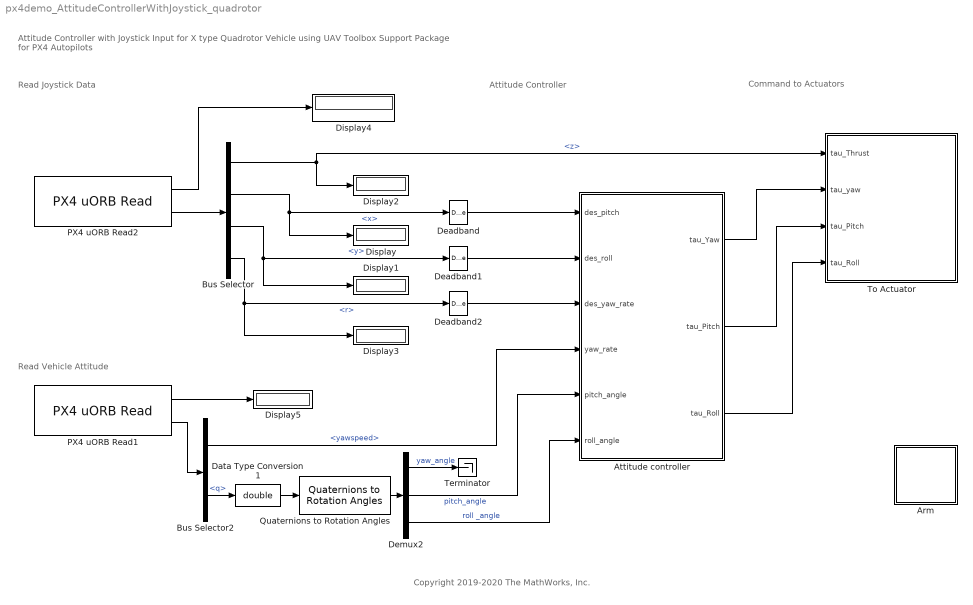
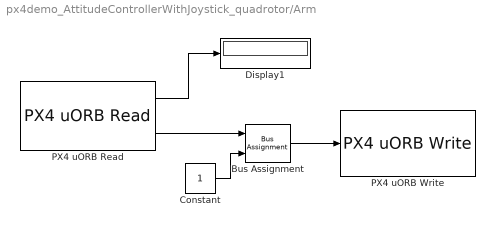
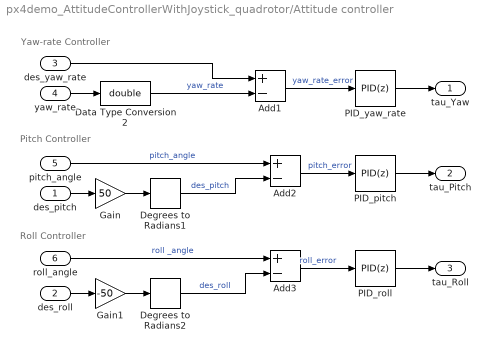
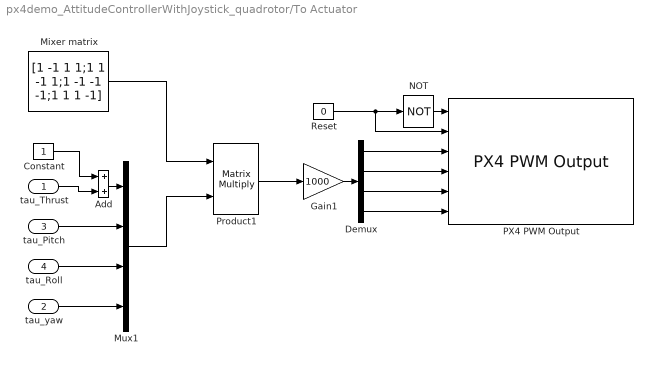
//
// Academic License - for use in teaching, academic research, and meeting
// course requirements at degree granting institutions only.  Not for
// government, commercial, or other organizational use.
//
// File: px4demo_AttitudeControllerWithJoystick_quadrotor.cpp
//
// Code generated for Simulink model 'px4demo_AttitudeControllerWithJoystick_quadrotor'.
//
// Model version                  : 2.0
// Simulink Coder version         : 9.5 (R2021a) 14-Nov-2020
// C/C++ source code generated on : Mon Mar 21 10:32:49 2022
//
// Target selection: ert.tlc
// Embedded hardware selection: ARM Compatible->ARM Cortex
// Code generation objectives: Unspecified
// Validation result: Not run
//
#include "px4demo_AttitudeControllerWithJoystick_quadrotor.h"
#include "px4demo_AttitudeControllerWithJoystick_quadrotor_private.h"

// Block signals (default storage)
B_px4demo_AttitudeControllerW_T px4demo_AttitudeControllerWit_B;

// Block states (default storage)
DW_px4demo_AttitudeController_T px4demo_AttitudeControllerWi_DW;

// Real-time model
RT_MODEL_px4demo_AttitudeCont_T px4demo_AttitudeControllerWi_M_ =
  RT_MODEL_px4demo_AttitudeCont_T();
RT_MODEL_px4demo_AttitudeCont_T *const px4demo_AttitudeControllerWi_M =
  &px4demo_AttitudeControllerWi_M_;

// Forward declaration for local functions
static void px4demo_Attitu_SystemCore_setup(px4_internal_block_PWM_px4dem_T *obj,
  boolean_T varargin_1, boolean_T varargin_2);
real_T rt_atan2d_snf(real_T u0, real_T u1)
{
  real_T y;
  int32_T u0_0;
  int32_T u1_0;
  if (rtIsNaN(u0) || rtIsNaN(u1)) {
    y = (rtNaN);
  } else if (rtIsInf(u0) && rtIsInf(u1)) {
    if (u0 > 0.0) {
      u0_0 = 1;
    } else {
      u0_0 = -1;
    }

    if (u1 > 0.0) {
      u1_0 = 1;
    } else {
      u1_0 = -1;
    }

    y = atan2(static_cast<real_T>(u0_0), static_cast<real_T>(u1_0));
  } else if (u1 == 0.0) {
    if (u0 > 0.0) {
      y = RT_PI / 2.0;
    } else if (u0 < 0.0) {
      y = -(RT_PI / 2.0);
    } else {
      y = 0.0;
    }
  } else {
    y = atan2(u0, u1);
  }

  return y;
}

static void px4demo_Attitu_SystemCore_setup(px4_internal_block_PWM_px4dem_T *obj,
  boolean_T varargin_1, boolean_T varargin_2)
{
  uint16_T status;
  obj->isSetupComplete = false;
  obj->isInitialized = 1;
  obj->isMain = true;
  obj->pwmDevObj = MW_PWM_OUTPUT_MAIN_DEVICE_PATH;
  status = pwm_open(&obj->pwmDevHandler, obj->pwmDevObj,
                    &obj->actuatorAdvertiseObj, &obj->armAdvertiseObj);
  obj->errorStatus = static_cast<uint16_T>(obj->errorStatus | status);
  obj->servoCount = 0;
  status = pwm_getServoCount(&obj->pwmDevHandler, &obj->servoCount);
  obj->errorStatus = static_cast<uint16_T>(obj->errorStatus | status);
  if (varargin_1) {
    status = pwm_arm(&obj->pwmDevHandler, &obj->armAdvertiseObj);
    obj->isArmed = true;
  } else {
    status = pwm_disarm(&obj->pwmDevHandler, &obj->armAdvertiseObj);
    obj->isArmed = false;
  }

  obj->errorStatus = static_cast<uint16_T>(obj->errorStatus | status);
  status = pwm_setPWMRate(&obj->pwmDevHandler, obj->isMain);
  obj->errorStatus = static_cast<uint16_T>(obj->errorStatus | status);
  obj->channelMask = 15;
  status = pwm_setChannelMask(&obj->pwmDevHandler, obj->channelMask);
  obj->errorStatus = static_cast<uint16_T>(obj->errorStatus | status);
  status = pwm_setFailsafePWM(&obj->pwmDevHandler, obj->servoCount,
    obj->channelMask, obj->isMain);
  obj->errorStatus = static_cast<uint16_T>(obj->errorStatus | status);
  status = pwm_setDisarmedPWM(&obj->pwmDevHandler, obj->servoCount,
    obj->channelMask, obj->isMain, &obj->actuatorAdvertiseObj);
  obj->errorStatus = static_cast<uint16_T>(obj->errorStatus | status);
  if (obj->isMain) {
    status = pwm_forceFailsafe(&obj->pwmDevHandler, static_cast<int32_T>
      (varargin_2));
    obj->errorStatus = static_cast<uint16_T>(obj->errorStatus | status);
    status = pwm_forceTerminateFailsafe(&obj->pwmDevHandler, 0);
    obj->errorStatus = static_cast<uint16_T>(obj->errorStatus | status);
  }

  obj->isSetupComplete = true;
}

// Model step function
void px4demo_AttitudeControllerWithJoystick_quadrotor_step(void)
{
  real_T rtb_Filter_d;
  real_T rtb_fcn3;
  real_T tmp;
  real_T tmp_0;
  int32_T i;
  real32_T tmp_1;
  uint16_T rtb_Gain1_n[4];
  uint16_T status;
  boolean_T b_varargout_1;

  // MATLABSystem: '<S4>/SourceBlock' incorporates:
  //   Inport: '<S160>/In1'

  b_varargout_1 = uORB_read_step
    (px4demo_AttitudeControllerWi_DW.obj.orbMetadataObj,
     &px4demo_AttitudeControllerWi_DW.obj.eventStructObj,
     &px4demo_AttitudeControllerWit_B.b_varargout_2_m, false, 1.0);

  // Outputs for Enabled SubSystem: '<S4>/Enabled Subsystem' incorporates:
  //   EnablePort: '<S160>/Enable'

  if (b_varargout_1) {
    px4demo_AttitudeControllerWit_B.In1_p =
      px4demo_AttitudeControllerWit_B.b_varargout_2_m;
  }

  // End of MATLABSystem: '<S4>/SourceBlock'
  // End of Outputs for SubSystem: '<S4>/Enabled Subsystem'

  // MATLABSystem: '<S3>/SourceBlock' incorporates:
  //   Inport: '<S159>/In1'

  b_varargout_1 = uORB_read_step
    (px4demo_AttitudeControllerWi_DW.obj_d.orbMetadataObj,
     &px4demo_AttitudeControllerWi_DW.obj_d.eventStructObj,
     &px4demo_AttitudeControllerWit_B.b_varargout_2, false, 1.0);

  // Outputs for Enabled SubSystem: '<S3>/Enabled Subsystem' incorporates:
  //   EnablePort: '<S159>/Enable'

  if (b_varargout_1) {
    px4demo_AttitudeControllerWit_B.In1 =
      px4demo_AttitudeControllerWit_B.b_varargout_2;
  }

  // End of MATLABSystem: '<S3>/SourceBlock'
  // End of Outputs for SubSystem: '<S3>/Enabled Subsystem'

  // Sqrt: '<S167>/sqrt' incorporates:
  //   DataTypeConversion: '<Root>/Data Type Conversion1'
  //   Product: '<S168>/Product'
  //   Product: '<S168>/Product1'
  //   Product: '<S168>/Product2'
  //   Product: '<S168>/Product3'
  //   Sum: '<S168>/Sum'

  px4demo_AttitudeControllerWit_B.Saturation_l = sqrt(((static_cast<real_T>
    (px4demo_AttitudeControllerWit_B.In1.q[0]) *
    px4demo_AttitudeControllerWit_B.In1.q[0] + static_cast<real_T>
    (px4demo_AttitudeControllerWit_B.In1.q[1]) *
    px4demo_AttitudeControllerWit_B.In1.q[1]) + static_cast<real_T>
    (px4demo_AttitudeControllerWit_B.In1.q[2]) *
    px4demo_AttitudeControllerWit_B.In1.q[2]) + static_cast<real_T>
    (px4demo_AttitudeControllerWit_B.In1.q[3]) *
    px4demo_AttitudeControllerWit_B.In1.q[3]);

  // Product: '<S162>/Product' incorporates:
  //   DataTypeConversion: '<Root>/Data Type Conversion1'

  px4demo_AttitudeControllerWit_B.Filter_o =
    px4demo_AttitudeControllerWit_B.In1.q[0] /
    px4demo_AttitudeControllerWit_B.Saturation_l;

  // Product: '<S162>/Product1' incorporates:
  //   DataTypeConversion: '<Root>/Data Type Conversion1'

  px4demo_AttitudeControllerWit_B.Saturation_f =
    px4demo_AttitudeControllerWit_B.In1.q[1] /
    px4demo_AttitudeControllerWit_B.Saturation_l;

  // Product: '<S162>/Product2' incorporates:
  //   DataTypeConversion: '<Root>/Data Type Conversion1'

  px4demo_AttitudeControllerWit_B.Filter =
    px4demo_AttitudeControllerWit_B.In1.q[2] /
    px4demo_AttitudeControllerWit_B.Saturation_l;

  // Product: '<S162>/Product3' incorporates:
  //   DataTypeConversion: '<Root>/Data Type Conversion1'

  px4demo_AttitudeControllerWit_B.Saturation_l =
    px4demo_AttitudeControllerWit_B.In1.q[3] /
    px4demo_AttitudeControllerWit_B.Saturation_l;

  // Fcn: '<S5>/fcn3'
  rtb_fcn3 = (px4demo_AttitudeControllerWit_B.Saturation_f *
              px4demo_AttitudeControllerWit_B.Saturation_l -
              px4demo_AttitudeControllerWit_B.Filter_o *
              px4demo_AttitudeControllerWit_B.Filter) * -2.0;

  // If: '<S163>/If' incorporates:
  //   Constant: '<S164>/Constant'
  //   Constant: '<S165>/Constant'

  if (rtb_fcn3 > 1.0) {
    rtb_fcn3 = px4demo_AttitudeControllerWit_P.Constant_Value_lz;
  } else if (rtb_fcn3 < -1.0) {
    rtb_fcn3 = px4demo_AttitudeControllerWit_P.Constant_Value_i;
  }

  // End of If: '<S163>/If'

  // Trigonometry: '<S161>/trigFcn'
  if (rtb_fcn3 > 1.0) {
    rtb_fcn3 = 1.0;
  } else if (rtb_fcn3 < -1.0) {
    rtb_fcn3 = -1.0;
  }

  // DeadZone: '<Root>/Deadband' incorporates:
  //   SignalConversion generated from: '<Root>/Bus Selector'

  if (px4demo_AttitudeControllerWit_B.In1_p.x >
      px4demo_AttitudeControllerWit_P.Deadband_End) {
    tmp_1 = px4demo_AttitudeControllerWit_B.In1_p.x -
      px4demo_AttitudeControllerWit_P.Deadband_End;
  } else if (px4demo_AttitudeControllerWit_B.In1_p.x >=
             px4demo_AttitudeControllerWit_P.Deadband_Start) {
    tmp_1 = 0.0F;
  } else {
    tmp_1 = px4demo_AttitudeControllerWit_B.In1_p.x -
      px4demo_AttitudeControllerWit_P.Deadband_Start;
  }

  // End of DeadZone: '<Root>/Deadband'

  // Sum: '<S2>/Add2' incorporates:
  //   Gain: '<S10>/Gain1'
  //   Gain: '<S2>/Gain'
  //   Trigonometry: '<S161>/trigFcn'

  rtb_Filter_d = asin(rtb_fcn3) - px4demo_AttitudeControllerWit_P.Gain_Gain *
    tmp_1 * px4demo_AttitudeControllerWit_P.Gain1_Gain_n;

  // DiscreteIntegrator: '<S46>/Integrator' incorporates:
  //   Gain: '<S43>/Integral Gain'

  px4demo_AttitudeControllerWi_DW.Integrator_DSTATE +=
    px4demo_AttitudeControllerWit_P.PID_pitch_I * rtb_Filter_d *
    px4demo_AttitudeControllerWit_P.Integrator_gainval;

  // Gain: '<S49>/Filter Coefficient' incorporates:
  //   DiscreteIntegrator: '<S41>/Filter'
  //   Gain: '<S40>/Derivative Gain'
  //   Sum: '<S41>/SumD'

  rtb_fcn3 = (px4demo_AttitudeControllerWit_P.PID_pitch_D * rtb_Filter_d -
              px4demo_AttitudeControllerWi_DW.Filter_DSTATE) *
    px4demo_AttitudeControllerWit_P.PID_pitch_N;

  // DeadZone: '<Root>/Deadband1' incorporates:
  //   SignalConversion generated from: '<Root>/Bus Selector'

  if (px4demo_AttitudeControllerWit_B.In1_p.y >
      px4demo_AttitudeControllerWit_P.Deadband1_End) {
    tmp_1 = px4demo_AttitudeControllerWit_B.In1_p.y -
      px4demo_AttitudeControllerWit_P.Deadband1_End;
  } else if (px4demo_AttitudeControllerWit_B.In1_p.y >=
             px4demo_AttitudeControllerWit_P.Deadband1_Start) {
    tmp_1 = 0.0F;
  } else {
    tmp_1 = px4demo_AttitudeControllerWit_B.In1_p.y -
      px4demo_AttitudeControllerWit_P.Deadband1_Start;
  }

  // End of DeadZone: '<Root>/Deadband1'

  // Sum: '<S2>/Add3' incorporates:
  //   Fcn: '<S5>/fcn4'
  //   Fcn: '<S5>/fcn5'
  //   Gain: '<S11>/Gain1'
  //   Gain: '<S2>/Gain1'
  //   Trigonometry: '<S161>/Trigonometric Function3'

  px4demo_AttitudeControllerWit_B.Filter_o = rt_atan2d_snf
    ((px4demo_AttitudeControllerWit_B.Filter *
      px4demo_AttitudeControllerWit_B.Saturation_l +
      px4demo_AttitudeControllerWit_B.Filter_o *
      px4demo_AttitudeControllerWit_B.Saturation_f) * 2.0,
     ((px4demo_AttitudeControllerWit_B.Filter_o *
       px4demo_AttitudeControllerWit_B.Filter_o -
       px4demo_AttitudeControllerWit_B.Saturation_f *
       px4demo_AttitudeControllerWit_B.Saturation_f) -
      px4demo_AttitudeControllerWit_B.Filter *
      px4demo_AttitudeControllerWit_B.Filter) +
     px4demo_AttitudeControllerWit_B.Saturation_l *
     px4demo_AttitudeControllerWit_B.Saturation_l) -
    px4demo_AttitudeControllerWit_P.Gain1_Gain_g * tmp_1 *
    px4demo_AttitudeControllerWit_P.Gain1_Gain_c;

  // DiscreteIntegrator: '<S94>/Integrator' incorporates:
  //   Gain: '<S91>/Integral Gain'

  px4demo_AttitudeControllerWi_DW.Integrator_DSTATE_m +=
    px4demo_AttitudeControllerWit_P.PID_roll_I *
    px4demo_AttitudeControllerWit_B.Filter_o *
    px4demo_AttitudeControllerWit_P.Integrator_gainval_e;

  // Gain: '<S97>/Filter Coefficient' incorporates:
  //   DiscreteIntegrator: '<S89>/Filter'
  //   Gain: '<S88>/Derivative Gain'
  //   Sum: '<S89>/SumD'

  px4demo_AttitudeControllerWit_B.Saturation_f =
    (px4demo_AttitudeControllerWit_P.PID_roll_D *
     px4demo_AttitudeControllerWit_B.Filter_o -
     px4demo_AttitudeControllerWi_DW.Filter_DSTATE_d) *
    px4demo_AttitudeControllerWit_P.PID_roll_N;

  // DeadZone: '<Root>/Deadband2' incorporates:
  //   SignalConversion generated from: '<Root>/Bus Selector'

  if (px4demo_AttitudeControllerWit_B.In1_p.r >
      px4demo_AttitudeControllerWit_P.Deadband2_End) {
    tmp_1 = px4demo_AttitudeControllerWit_B.In1_p.r -
      px4demo_AttitudeControllerWit_P.Deadband2_End;
  } else if (px4demo_AttitudeControllerWit_B.In1_p.r >=
             px4demo_AttitudeControllerWit_P.Deadband2_Start) {
    tmp_1 = 0.0F;
  } else {
    tmp_1 = px4demo_AttitudeControllerWit_B.In1_p.r -
      px4demo_AttitudeControllerWit_P.Deadband2_Start;
  }

  // End of DeadZone: '<Root>/Deadband2'

  // Sum: '<S2>/Add1' incorporates:
  //   DataTypeConversion: '<S2>/Data Type Conversion2'

  px4demo_AttitudeControllerWit_B.Saturation_l = static_cast<real_T>(tmp_1) -
    px4demo_AttitudeControllerWit_B.In1.yawspeed;

  // DiscreteIntegrator: '<S142>/Integrator' incorporates:
  //   Gain: '<S139>/Integral Gain'

  px4demo_AttitudeControllerWi_DW.Integrator_DSTATE_i +=
    px4demo_AttitudeControllerWit_P.PID_yaw_rate_I *
    px4demo_AttitudeControllerWit_B.Saturation_l *
    px4demo_AttitudeControllerWit_P.Integrator_gainval_b;

  // Gain: '<S145>/Filter Coefficient' incorporates:
  //   DiscreteIntegrator: '<S137>/Filter'
  //   Gain: '<S136>/Derivative Gain'
  //   Sum: '<S137>/SumD'

  px4demo_AttitudeControllerWit_B.Filter =
    (px4demo_AttitudeControllerWit_P.PID_yaw_rate_D *
     px4demo_AttitudeControllerWit_B.Saturation_l -
     px4demo_AttitudeControllerWi_DW.Filter_DSTATE_k) *
    px4demo_AttitudeControllerWit_P.PID_yaw_rate_N;

  // Sum: '<S55>/Sum' incorporates:
  //   Gain: '<S51>/Proportional Gain'

  rtb_Filter_d = (px4demo_AttitudeControllerWit_P.PID_pitch_P * rtb_Filter_d +
                  px4demo_AttitudeControllerWi_DW.Integrator_DSTATE) + rtb_fcn3;

  // Saturate: '<S53>/Saturation'
  if (rtb_Filter_d >
      px4demo_AttitudeControllerWit_P.PID_pitch_UpperSaturationLimit) {
    rtb_Filter_d =
      px4demo_AttitudeControllerWit_P.PID_pitch_UpperSaturationLimit;
  } else if (rtb_Filter_d <
             px4demo_AttitudeControllerWit_P.PID_pitch_LowerSaturationLimit) {
    rtb_Filter_d =
      px4demo_AttitudeControllerWit_P.PID_pitch_LowerSaturationLimit;
  }

  // Sum: '<S103>/Sum' incorporates:
  //   Gain: '<S99>/Proportional Gain'

  px4demo_AttitudeControllerWit_B.Filter_o =
    (px4demo_AttitudeControllerWit_P.PID_roll_P *
     px4demo_AttitudeControllerWit_B.Filter_o +
     px4demo_AttitudeControllerWi_DW.Integrator_DSTATE_m) +
    px4demo_AttitudeControllerWit_B.Saturation_f;

  // Saturate: '<S101>/Saturation'
  if (px4demo_AttitudeControllerWit_B.Filter_o >
      px4demo_AttitudeControllerWit_P.PID_roll_UpperSaturationLimit) {
    px4demo_AttitudeControllerWit_B.Filter_o =
      px4demo_AttitudeControllerWit_P.PID_roll_UpperSaturationLimit;
  } else if (px4demo_AttitudeControllerWit_B.Filter_o <
             px4demo_AttitudeControllerWit_P.PID_roll_LowerSaturationLimit) {
    px4demo_AttitudeControllerWit_B.Filter_o =
      px4demo_AttitudeControllerWit_P.PID_roll_LowerSaturationLimit;
  }

  // Sum: '<S151>/Sum' incorporates:
  //   Gain: '<S147>/Proportional Gain'

  px4demo_AttitudeControllerWit_B.Saturation_l =
    (px4demo_AttitudeControllerWit_P.PID_yaw_rate_P *
     px4demo_AttitudeControllerWit_B.Saturation_l +
     px4demo_AttitudeControllerWi_DW.Integrator_DSTATE_i) +
    px4demo_AttitudeControllerWit_B.Filter;

  // Saturate: '<S149>/Saturation'
  if (px4demo_AttitudeControllerWit_B.Saturation_l >
      px4demo_AttitudeControllerWit_P.PID_yaw_rate_UpperSaturationLim) {
    px4demo_AttitudeControllerWit_B.Saturation_l =
      px4demo_AttitudeControllerWit_P.PID_yaw_rate_UpperSaturationLim;
  } else if (px4demo_AttitudeControllerWit_B.Saturation_l <
             px4demo_AttitudeControllerWit_P.PID_yaw_rate_LowerSaturationLim) {
    px4demo_AttitudeControllerWit_B.Saturation_l =
      px4demo_AttitudeControllerWit_P.PID_yaw_rate_LowerSaturationLim;
  }

  // SignalConversion generated from: '<S6>/Product1' incorporates:
  //   Constant: '<S6>/Constant'
  //   SignalConversion generated from: '<Root>/Bus Selector'
  //   Sum: '<S6>/Add'

  tmp = px4demo_AttitudeControllerWit_P.Constant_Value_m +
    px4demo_AttitudeControllerWit_B.In1_p.z;
  for (i = 0; i < 4; i++) {
    // Gain: '<S6>/Gain1' incorporates:
    //   Constant: '<S6>/Mixer matrix'
    //   Product: '<S6>/Product1'
    //   Saturate: '<S101>/Saturation'
    //   Saturate: '<S149>/Saturation'
    //   Saturate: '<S53>/Saturation'

    tmp_0 = floor(px4demo_AttitudeControllerWit_P.Gain1_Gain *
                  (px4demo_AttitudeControllerWit_P.Mixermatrix_Value[i + 12] *
                   px4demo_AttitudeControllerWit_B.Saturation_l +
                   (px4demo_AttitudeControllerWit_P.Mixermatrix_Value[i + 8] *
                    px4demo_AttitudeControllerWit_B.Filter_o +
                    (px4demo_AttitudeControllerWit_P.Mixermatrix_Value[i + 4] *
                     rtb_Filter_d +
                     px4demo_AttitudeControllerWit_P.Mixermatrix_Value[i] * tmp))));
    if (rtIsNaN(tmp_0) || rtIsInf(tmp_0)) {
      tmp_0 = 0.0;
    } else {
      tmp_0 = fmod(tmp_0, 65536.0);
    }

    rtb_Gain1_n[i] = static_cast<uint16_T>(tmp_0 < 0.0 ? static_cast<int32_T>(
      static_cast<uint16_T>(-static_cast<int16_T>(static_cast<uint16_T>(-tmp_0))))
      : static_cast<int32_T>(static_cast<uint16_T>(tmp_0)));

    // End of Gain: '<S6>/Gain1'
  }

  // MATLABSystem: '<S6>/PX4 PWM Output' incorporates:
  //   Constant: '<S6>/Reset'
  //   Logic: '<S6>/NOT'

  for (i = 0; i < 8; i++) {
    px4demo_AttitudeControllerWit_B.pwmValue[i] = 0U;
  }

  px4demo_AttitudeControllerWit_B.pwmValue[0] = rtb_Gain1_n[0];
  px4demo_AttitudeControllerWit_B.pwmValue[1] = rtb_Gain1_n[1];
  px4demo_AttitudeControllerWit_B.pwmValue[2] = rtb_Gain1_n[2];
  px4demo_AttitudeControllerWit_B.pwmValue[3] = rtb_Gain1_n[3];
  if (!px4demo_AttitudeControllerWit_P.Reset_Value) {
    if (!px4demo_AttitudeControllerWi_DW.obj_dx.isArmed) {
      px4demo_AttitudeControllerWi_DW.obj_dx.isArmed = true;
      status = pwm_arm(&px4demo_AttitudeControllerWi_DW.obj_dx.pwmDevHandler,
                       &px4demo_AttitudeControllerWi_DW.obj_dx.armAdvertiseObj);
      px4demo_AttitudeControllerWi_DW.obj_dx.errorStatus = static_cast<uint16_T>
        (px4demo_AttitudeControllerWi_DW.obj_dx.errorStatus | status);
    }

    status = pwm_setServo(&px4demo_AttitudeControllerWi_DW.obj_dx.pwmDevHandler,
                          px4demo_AttitudeControllerWi_DW.obj_dx.servoCount,
                          px4demo_AttitudeControllerWi_DW.obj_dx.channelMask,
                          &px4demo_AttitudeControllerWit_B.pwmValue[0],
                          px4demo_AttitudeControllerWi_DW.obj_dx.isMain,
                          &px4demo_AttitudeControllerWi_DW.obj_dx.actuatorAdvertiseObj);
    px4demo_AttitudeControllerWi_DW.obj_dx.errorStatus = static_cast<uint16_T>
      (px4demo_AttitudeControllerWi_DW.obj_dx.errorStatus | status);
  } else {
    status = pwm_disarm(&px4demo_AttitudeControllerWi_DW.obj_dx.pwmDevHandler,
                        &px4demo_AttitudeControllerWi_DW.obj_dx.armAdvertiseObj);
    px4demo_AttitudeControllerWi_DW.obj_dx.errorStatus = static_cast<uint16_T>
      (px4demo_AttitudeControllerWi_DW.obj_dx.errorStatus | status);
    px4demo_AttitudeControllerWi_DW.obj_dx.isArmed = false;
    status = pwm_resetServo
      (&px4demo_AttitudeControllerWi_DW.obj_dx.pwmDevHandler,
       px4demo_AttitudeControllerWi_DW.obj_dx.servoCount,
       px4demo_AttitudeControllerWi_DW.obj_dx.channelMask,
       px4demo_AttitudeControllerWi_DW.obj_dx.isMain,
       &px4demo_AttitudeControllerWi_DW.obj_dx.actuatorAdvertiseObj);
    px4demo_AttitudeControllerWi_DW.obj_dx.errorStatus = static_cast<uint16_T>
      (px4demo_AttitudeControllerWi_DW.obj_dx.errorStatus | status);
  }

  if (px4demo_AttitudeControllerWi_DW.obj_dx.isMain) {
    status = pwm_forceFailsafe
      (&px4demo_AttitudeControllerWi_DW.obj_dx.pwmDevHandler,
       static_cast<int32_T>(px4demo_AttitudeControllerWit_P.Reset_Value));
    px4demo_AttitudeControllerWi_DW.obj_dx.errorStatus = static_cast<uint16_T>
      (px4demo_AttitudeControllerWi_DW.obj_dx.errorStatus | status);
  }

  // End of MATLABSystem: '<S6>/PX4 PWM Output'

  // MATLABSystem: '<S7>/SourceBlock' incorporates:
  //   Inport: '<S9>/In1'

  b_varargout_1 = uORB_read_step
    (px4demo_AttitudeControllerWi_DW.obj_l.orbMetadataObj,
     &px4demo_AttitudeControllerWi_DW.obj_l.eventStructObj,
     &px4demo_AttitudeControllerWit_B.BusAssignment, false, 1.0);

  // Outputs for Enabled SubSystem: '<S7>/Enabled Subsystem' incorporates:
  //   EnablePort: '<S9>/Enable'

  if (b_varargout_1) {
    px4demo_AttitudeControllerWit_B.In1_a =
      px4demo_AttitudeControllerWit_B.BusAssignment;
  }

  // End of MATLABSystem: '<S7>/SourceBlock'
  // End of Outputs for SubSystem: '<S7>/Enabled Subsystem'

  // BusAssignment: '<S1>/Bus Assignment' incorporates:
  //   Constant: '<S1>/Constant'
  //   Inport: '<S9>/In1'

  px4demo_AttitudeControllerWit_B.BusAssignment =
    px4demo_AttitudeControllerWit_B.In1_a;
  px4demo_AttitudeControllerWit_B.BusAssignment.armed =
    px4demo_AttitudeControllerWit_P.Constant_Value_a;

  // MATLABSystem: '<S8>/SinkBlock' incorporates:
  //   BusAssignment: '<S1>/Bus Assignment'

  uORB_write_step(px4demo_AttitudeControllerWi_DW.obj_e.orbMetadataObj,
                  &px4demo_AttitudeControllerWi_DW.obj_e.orbAdvertiseObj,
                  &px4demo_AttitudeControllerWit_B.BusAssignment);

  // Update for DiscreteIntegrator: '<S41>/Filter'
  px4demo_AttitudeControllerWi_DW.Filter_DSTATE +=
    px4demo_AttitudeControllerWit_P.Filter_gainval * rtb_fcn3;

  // Update for DiscreteIntegrator: '<S89>/Filter'
  px4demo_AttitudeControllerWi_DW.Filter_DSTATE_d +=
    px4demo_AttitudeControllerWit_P.Filter_gainval_j *
    px4demo_AttitudeControllerWit_B.Saturation_f;

  // Update for DiscreteIntegrator: '<S137>/Filter'
  px4demo_AttitudeControllerWi_DW.Filter_DSTATE_k +=
    px4demo_AttitudeControllerWit_P.Filter_gainval_i *
    px4demo_AttitudeControllerWit_B.Filter;
}
